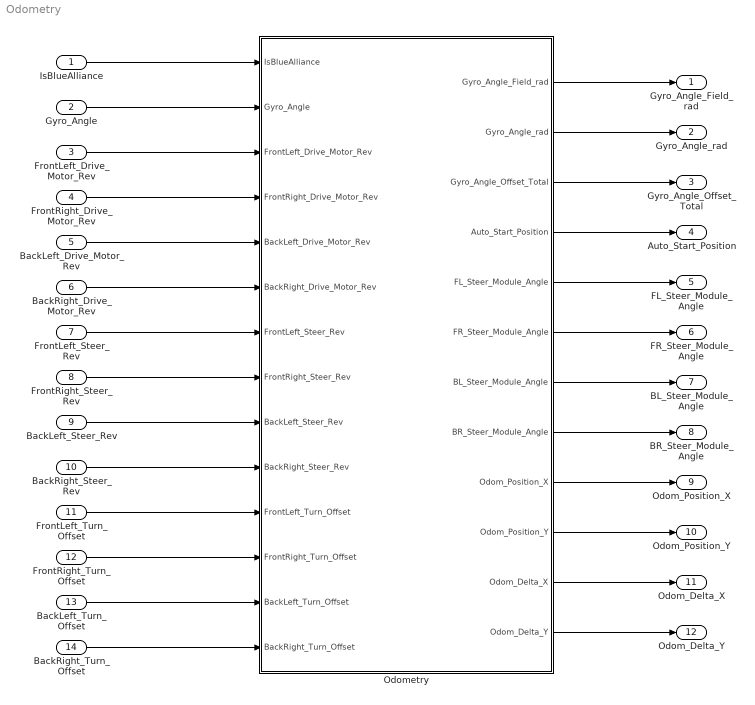
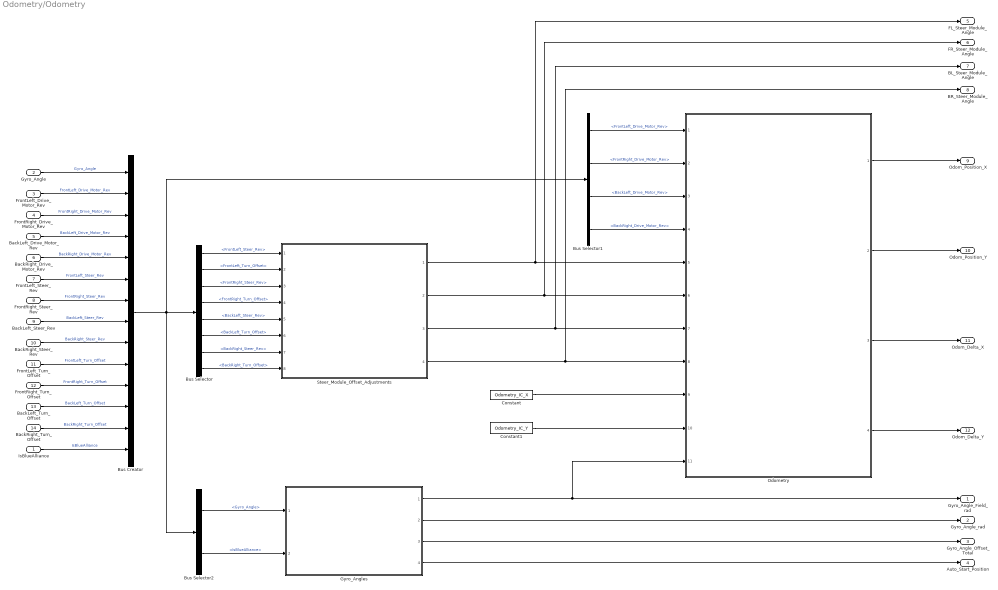
/*
 * Sponsored License - for use in support of a program or activity
 * sponsored by MathWorks.  Not for government, commercial or other
 * non-sponsored organizational use.
 *
 * File: Odometry.c
 *
 * Code generated for Simulink model 'Odometry'.
 *
 * Model version                  : 2.425
 * Simulink Coder version         : 23.2 (R2023b) 01-Aug-2023
 * C/C++ source code generated on : Sat Dec 13 20:00:44 2025
 *
 * Target selection: ert.tlc
 * Embedded hardware selection: ARM Compatible->ARM 7
 * Code generation objectives: Unspecified
 * Validation result: Not run
 */

#include "Odometry.h"
#include "rt_modd_snf.h"
#include <math.h>
#include "rtwtypes.h"
#include "Odometry_private.h"
#include "rt_nonfinite.h"

/* Exported block parameters */
real_T Auto_Starting_Position = 2.0;   /* Variable: Auto_Starting_Position
                                        * Referenced by: '<S2>/Constant2'
                                        */
real_T Gyro_Calibration_Auto_Center = 180.0;/* Variable: Gyro_Calibration_Auto_Center
                                             * Referenced by: '<S2>/Constant5'
                                             */
real_T Gyro_Calibration_Auto_Left = 210.0;/* Variable: Gyro_Calibration_Auto_Left
                                           * Referenced by: '<S2>/Constant4'
                                           */
real_T Gyro_Calibration_Auto_Right = 125.0;/* Variable: Gyro_Calibration_Auto_Right
                                            * Referenced by: '<S2>/Constant6'
                                            */
real_T Gyro_Calibration_Default = 0.0; /* Variable: Gyro_Calibration_Default
                                        * Referenced by:
                                        *   '<S2>/Constant7'
                                        *   '<S2>/Unit Delay1'
                                        */
real_T Gyro_Calibration_Reset_Flag = 0.0;/* Variable: Gyro_Calibration_Reset_Flag
                                          * Referenced by: '<S2>/Constant3'
                                          */
real_T Motor_Rev_to_Wheel_Distance = 0.049547;/* Variable: Motor_Rev_to_Wheel_Distance
                                               * Referenced by: '<S3>/Constant1'
                                               */
real_T Odometry_IC_X = 0.0;            /* Variable: Odometry_IC_X
                                        * Referenced by: '<S1>/Constant'
                                        */
real_T Odometry_IC_Y = 0.0;            /* Variable: Odometry_IC_Y
                                        * Referenced by: '<S1>/Constant1'
                                        */
real_T Odometry_Reset_IC = 0.0;        /* Variable: Odometry_Reset_IC
                                        * Referenced by: '<S3>/Constant'
                                        */
real_T Odometry_X_Y_TEAR = 0.0;        /* Variable: Odometry_X_Y_TEAR
                                        * Referenced by: '<S16>/Constant'
                                        */

/* Block signals (default storage) */
B_Odometry_T Odometry_B;

/* Block states (default storage) */
DW_Odometry_T Odometry_DW;

/* External inputs (root inport signals with default storage) */
ExtU_Odometry_T Odometry_U;

/* External outputs (root outports fed by signals with default storage) */
ExtY_Odometry_T Odometry_Y;

/* Real-time model */
static RT_MODEL_Odometry_T Odometry_M_;
RT_MODEL_Odometry_T *const Odometry_M = &Odometry_M_;

/* Model step function */
void Odometry_step(void)
{
  real_T rtb_thetay_2[8];
  real_T rtb_Product7[2];
  real_T rtb_POSEexponentialmatrixfori_0;
  real_T rtb_Rotationmatrixfromlocalto_0;
  real_T rtb_Rotationmatrixfromlocalto_1;
  real_T rtb_Rotationmatrixfromlocalto_2;
  real_T rtb_UnaryMinus2;
  real_T rtb_thetay;
  real_T rtb_thetay_b;
  real_T rtb_thetay_g;
  int32_T i;
  int32_T i_0;
  int32_T tmp;
  boolean_T rtb_Compare;

  /* Sum: '<S18>/Add1' incorporates:
   *  Constant: '<S18>/Constant3'
   *  Constant: '<S18>/Constant4'
   *  Gain: '<S4>/Revolutions to Radians'
   *  Inport: '<Root>/FrontLeft_Steer_Rev'
   *  Inport: '<Root>/FrontLeft_Turn_Offset'
   *  Math: '<S18>/Math Function'
   *  Sum: '<S18>/Add2'
   *  Sum: '<S4>/Add'
   */
  Odometry_B.FL_Steer_Module_Angle = rt_modd_snf
    (((Odometry_U.FrontLeft_Steer_Rev - Odometry_U.FrontLeft_Turn_Offset) *
      6.2831853071795862) + 3.1415926535897931, 6.2831853071795862) -
    3.1415926535897931;

  /* Product: '<S3>/Product' incorporates:
   *  Constant: '<S3>/Constant1'
   *  Inport: '<Root>/FrontLeft_Drive_Motor_Rev'
   *  Sum: '<S8>/Diff'
   *  UnitDelay: '<S8>/UD'
   *
   * Block description for '<S8>/Diff':
   *
   *  Add in CPU
   *
   * Block description for '<S8>/UD':
   *
   *  Store in Global RAM
   */
  rtb_thetay = (Odometry_U.FrontLeft_Drive_Motor_Rev - Odometry_DW.UD_DSTATE) *
    Motor_Rev_to_Wheel_Distance;

  /* Sum: '<S19>/Add1' incorporates:
   *  Constant: '<S19>/Constant3'
   *  Constant: '<S19>/Constant4'
   *  Gain: '<S4>/Revolutions to Radians1'
   *  Inport: '<Root>/FrontRight_Steer_Rev'
   *  Inport: '<Root>/FrontRight_Turn_Offset'
   *  Math: '<S19>/Math Function'
   *  Sum: '<S19>/Add2'
   *  Sum: '<S4>/Add1'
   */
  Odometry_B.FR_Steer_Module_Angle = rt_modd_snf
    (((Odometry_U.FrontRight_Steer_Rev - Odometry_U.FrontRight_Turn_Offset) *
      6.2831853071795862) + 3.1415926535897931, 6.2831853071795862) -
    3.1415926535897931;

  /* Product: '<S3>/Product1' incorporates:
   *  Constant: '<S3>/Constant1'
   *  Inport: '<Root>/FrontRight_Drive_Motor_Rev'
   *  Sum: '<S9>/Diff'
   *  UnitDelay: '<S9>/UD'
   *
   * Block description for '<S9>/Diff':
   *
   *  Add in CPU
   *
   * Block description for '<S9>/UD':
   *
   *  Store in Global RAM
   */
  rtb_thetay_g = (Odometry_U.FrontRight_Drive_Motor_Rev -
                  Odometry_DW.UD_DSTATE_o) * Motor_Rev_to_Wheel_Distance;

  /* Sum: '<S20>/Add1' incorporates:
   *  Constant: '<S20>/Constant3'
   *  Constant: '<S20>/Constant4'
   *  Gain: '<S4>/Revolutions to Radians2'
   *  Inport: '<Root>/BackLeft_Steer_Rev'
   *  Inport: '<Root>/BackLeft_Turn_Offset'
   *  Math: '<S20>/Math Function'
   *  Sum: '<S20>/Add2'
   *  Sum: '<S4>/Add2'
   */
  Odometry_B.BL_Steer_Module_Angle = rt_modd_snf(((Odometry_U.BackLeft_Steer_Rev
    - Odometry_U.BackLeft_Turn_Offset) * 6.2831853071795862) +
    3.1415926535897931, 6.2831853071795862) - 3.1415926535897931;

  /* Product: '<S3>/Product2' incorporates:
   *  Constant: '<S3>/Constant1'
   *  Inport: '<Root>/BackLeft_Drive_Motor_Rev'
   *  Sum: '<S10>/Diff'
   *  UnitDelay: '<S10>/UD'
   *
   * Block description for '<S10>/Diff':
   *
   *  Add in CPU
   *
   * Block description for '<S10>/UD':
   *
   *  Store in Global RAM
   */
  rtb_thetay_b = (Odometry_U.BackLeft_Drive_Motor_Rev - Odometry_DW.UD_DSTATE_m)
    * Motor_Rev_to_Wheel_Distance;

  /* Sum: '<S21>/Add1' incorporates:
   *  Constant: '<S21>/Constant3'
   *  Constant: '<S21>/Constant4'
   *  Gain: '<S4>/Revolutions to Radians3'
   *  Inport: '<Root>/BackRight_Steer_Rev'
   *  Inport: '<Root>/BackRight_Turn_Offset'
   *  Math: '<S21>/Math Function'
   *  Sum: '<S21>/Add2'
   *  Sum: '<S4>/Add3'
   */
  Odometry_B.BR_Steer_Module_Angle = rt_modd_snf
    (((Odometry_U.BackRight_Steer_Rev - Odometry_U.BackRight_Turn_Offset) *
      6.2831853071795862) + 3.1415926535897931, 6.2831853071795862) -
    3.1415926535897931;

  /* Product: '<S3>/Product3' incorporates:
   *  Constant: '<S3>/Constant1'
   *  Inport: '<Root>/BackRight_Drive_Motor_Rev'
   *  Sum: '<S11>/Diff'
   *  UnitDelay: '<S11>/UD'
   *
   * Block description for '<S11>/Diff':
   *
   *  Add in CPU
   *
   * Block description for '<S11>/UD':
   *
   *  Store in Global RAM
   */
  rtb_UnaryMinus2 = (Odometry_U.BackRight_Drive_Motor_Rev -
                     Odometry_DW.UD_DSTATE_om) * Motor_Rev_to_Wheel_Distance;

  /* SignalConversion generated from: '<S3>/Product7' incorporates:
   *  Fcn: '<S12>/r->x'
   *  Fcn: '<S12>/theta->y'
   *  Fcn: '<S13>/r->x'
   *  Fcn: '<S13>/theta->y'
   *  Fcn: '<S14>/r->x'
   *  Fcn: '<S14>/theta->y'
   *  Fcn: '<S15>/r->x'
   *  Fcn: '<S15>/theta->y'
   */
  rtb_thetay_2[0] = rtb_thetay * cos(Odometry_B.FL_Steer_Module_Angle);
  rtb_thetay_2[1] = rtb_thetay * sin(Odometry_B.FL_Steer_Module_Angle);
  rtb_thetay_2[2] = rtb_thetay_g * cos(Odometry_B.FR_Steer_Module_Angle);
  rtb_thetay_2[3] = rtb_thetay_g * sin(Odometry_B.FR_Steer_Module_Angle);
  rtb_thetay_2[4] = rtb_thetay_b * cos(Odometry_B.BL_Steer_Module_Angle);
  rtb_thetay_2[5] = rtb_thetay_b * sin(Odometry_B.BL_Steer_Module_Angle);
  rtb_thetay_2[6] = rtb_UnaryMinus2 * cos(Odometry_B.BR_Steer_Module_Angle);
  rtb_thetay_2[7] = rtb_UnaryMinus2 * sin(Odometry_B.BR_Steer_Module_Angle);

  /* Product: '<S3>/Product7' incorporates:
   *  Constant: '<S3>/Constant4'
   */
  for (i = 0; i < 2; i++) {
    rtb_thetay = 0.0;
    tmp = 0;
    for (i_0 = 0; i_0 < 8; i_0++) {
      rtb_thetay += rtCP_Constant4_Value[tmp + i] * rtb_thetay_2[i_0];
      tmp += 2;
    }

    rtb_Product7[i] = rtb_thetay;
  }

  /* End of Product: '<S3>/Product7' */

  /* Switch: '<S2>/Switch1' incorporates:
   *  Constant: '<S2>/Constant3'
   *  Inport: '<Root>/Gyro_Angle'
   *  RelationalOperator: '<S6>/FixPt Relational Operator'
   *  Sum: '<S2>/Sum'
   *  UnitDelay: '<S2>/Unit Delay1'
   *  UnitDelay: '<S6>/Delay Input1'
   *
   * Block description for '<S6>/Delay Input1':
   *
   *  Store in Global RAM
   */
  if (Gyro_Calibration_Reset_Flag > Odometry_DW.DelayInput1_DSTATE) {
    /* MultiPortSwitch: '<S2>/Multiport Switch' incorporates:
     *  Constant: '<S2>/Constant2'
     *  Constant: '<S2>/Constant4'
     *  Constant: '<S2>/Constant5'
     *  Constant: '<S2>/Constant6'
     *  Constant: '<S2>/Constant7'
     */
    switch ((int32_T)Auto_Starting_Position) {
     case 1:
      rtb_UnaryMinus2 = Gyro_Calibration_Auto_Left;
      break;

     case 2:
      rtb_UnaryMinus2 = Gyro_Calibration_Auto_Center;
      break;

     case 3:
      rtb_UnaryMinus2 = Gyro_Calibration_Auto_Right;
      break;

     default:
      rtb_UnaryMinus2 = Gyro_Calibration_Default;
      break;
    }

    /* End of MultiPortSwitch: '<S2>/Multiport Switch' */
    rtb_thetay = rtb_UnaryMinus2 - Odometry_U.Gyro_Angle;
  } else {
    rtb_thetay = Odometry_DW.UnitDelay1_DSTATE;
  }

  /* End of Switch: '<S2>/Switch1' */

  /* Sum: '<S2>/Subtract1' incorporates:
   *  Inport: '<Root>/Gyro_Angle'
   */
  Odometry_B.Gyro_Angle_Calibrated_deg = Odometry_U.Gyro_Angle + rtb_thetay;

  /* Gain: '<S5>/Gain1' */
  Odometry_B.Gyro_Angle_rad = 0.017453292519943295 *
    Odometry_B.Gyro_Angle_Calibrated_deg;

  /* Switch: '<S2>/Switch' incorporates:
   *  Constant: '<S2>/Constant'
   *  Constant: '<S2>/Constant1'
   *  Inport: '<Root>/IsBlueAlliance'
   */
  if (Odometry_U.IsBlueAlliance != 0.0) {
    rtb_thetay_g = 0.0;
  } else {
    rtb_thetay_g = 3.1415926535897931;
  }

  /* End of Switch: '<S2>/Switch' */

  /* Sum: '<S2>/Add' */
  Odometry_B.Gyro_Angle_Field_rad = Odometry_B.Gyro_Angle_rad + rtb_thetay_g;

  /* Trigonometry: '<S3>/Trigonometric Function1' */
  rtb_thetay_b = sin(Odometry_B.Gyro_Angle_Field_rad);

  /* SignalConversion generated from: '<S3>/Rotation matrix from local to global' incorporates:
   *  Trigonometry: '<S3>/Trigonometric Function'
   */
  rtb_Rotationmatrixfromlocalto_0 = cos(Odometry_B.Gyro_Angle_Field_rad);
  rtb_Rotationmatrixfromlocalto_1 = rtb_thetay_b;

  /* SignalConversion generated from: '<S3>/Rotation matrix from local to global' incorporates:
   *  UnaryMinus: '<S3>/Unary Minus'
   */
  rtb_Rotationmatrixfromlocalto_2 = -rtb_thetay_b;

  /* Sum: '<S7>/Diff' incorporates:
   *  UnitDelay: '<S7>/UD'
   *
   * Block description for '<S7>/Diff':
   *
   *  Add in CPU
   *
   * Block description for '<S7>/UD':
   *
   *  Store in Global RAM
   */
  rtb_UnaryMinus2 = Odometry_B.Gyro_Angle_Field_rad - Odometry_DW.UD_DSTATE_h;

  /* Sum: '<S3>/Subtract2' incorporates:
   *  Constant: '<S3>/Constant3'
   *  Gain: '<S3>/Gain7'
   *  Math: '<S3>/Square'
   */
  rtb_thetay_b = 1.0 - ((rtb_UnaryMinus2 * rtb_UnaryMinus2) *
                        0.16666666666666666);

  /* Gain: '<S3>/Gain6' */
  rtb_UnaryMinus2 *= 0.5;

  /* Product: '<S3>/Product6' incorporates:
   *  SignalConversion generated from: '<S3>/POSE exponential matrix for improved accuracy while rotating'
   *  UnaryMinus: '<S3>/Unary Minus2'
   */
  rtb_POSEexponentialmatrixfori_0 = (rtb_thetay_b * rtb_Product7[0]) +
    ((-rtb_UnaryMinus2) * rtb_Product7[1]);
  rtb_thetay_b = (rtb_UnaryMinus2 * rtb_Product7[0]) + (rtb_thetay_b *
    rtb_Product7[1]);

  /* Product: '<S3>/Product6' incorporates:
   *  Concatenate: '<S3>/Rotation matrix from local to global'
   */
  Odometry_B.Product6[0] = (rtb_Rotationmatrixfromlocalto_0 *
    rtb_POSEexponentialmatrixfori_0) + (rtb_Rotationmatrixfromlocalto_2 *
    rtb_thetay_b);
  Odometry_B.Product6[1] = (rtb_Rotationmatrixfromlocalto_1 *
    rtb_POSEexponentialmatrixfori_0) + (rtb_Rotationmatrixfromlocalto_0 *
    rtb_thetay_b);

  /* Outport: '<Root>/Odom_Delta_X' */
  Odometry_Y.Odom_Delta_X = Odometry_B.Product6[0];

  /* Outport: '<Root>/Odom_Delta_Y' */
  Odometry_Y.Odom_Delta_Y = Odometry_B.Product6[1];

  /* Outport: '<Root>/Gyro_Angle_Field_rad' */
  Odometry_Y.Gyro_Angle_Field_rad = Odometry_B.Gyro_Angle_Field_rad;

  /* Outport: '<Root>/Gyro_Angle_Offset_Total' incorporates:
   *  Gain: '<S2>/Gain'
   *  Sum: '<S2>/Add1'
   */
  Odometry_Y.Gyro_Angle_Offset_Total = (rtb_thetay_g + rtb_thetay) *
    57.295779513082323;

  /* Outport: '<Root>/Gyro_Angle_rad' */
  Odometry_Y.Gyro_Angle_rad = Odometry_B.Gyro_Angle_rad;

  /* Outport: '<Root>/Auto_Start_Position' incorporates:
   *  Constant: '<S2>/Constant2'
   */
  Odometry_Y.Auto_Start_Position = Auto_Starting_Position;

  /* Outport: '<Root>/BR_Steer_Module_Angle' */
  Odometry_Y.BR_Steer_Module_Angle = Odometry_B.BR_Steer_Module_Angle;

  /* Outport: '<Root>/BL_Steer_Module_Angle' */
  Odometry_Y.BL_Steer_Module_Angle = Odometry_B.BL_Steer_Module_Angle;

  /* Outport: '<Root>/FR_Steer_Module_Angle' */
  Odometry_Y.FR_Steer_Module_Angle = Odometry_B.FR_Steer_Module_Angle;

  /* Outport: '<Root>/FL_Steer_Module_Angle' */
  Odometry_Y.FL_Steer_Module_Angle = Odometry_B.FL_Steer_Module_Angle;

  /* RelationalOperator: '<S17>/Compare' incorporates:
   *  Constant: '<S16>/Constant'
   *  Constant: '<S17>/Constant'
   */
  rtb_Compare = (Odometry_X_Y_TEAR != 0.0);

  /* DiscreteIntegrator: '<S3>/Accumulator2' incorporates:
   *  Constant: '<S1>/Constant'
   *  Constant: '<S3>/Constant'
   */
  if ((Odometry_Reset_IC > 0.0) && (Odometry_DW.Accumulator2_PrevResetState <= 0))
  {
    Odometry_DW.Accumulator2_DSTATE = Odometry_IC_X;
  }

  /* DiscreteIntegrator: '<S3>/Accumulator2' */
  Odometry_B.Odom_Position_X = Odometry_DW.Accumulator2_DSTATE;

  /* Gain: '<S16>/meters to feet' */
  Odometry_B.Odometry_X_global_est_ft = 3.28084 * Odometry_B.Odom_Position_X;

  /* Switch: '<S16>/Switch' incorporates:
   *  UnitDelay: '<S16>/Unit Delay'
   */
  if (rtb_Compare) {
    rtb_UnaryMinus2 = Odometry_B.Odometry_X_global_est_ft;
  } else {
    rtb_UnaryMinus2 = Odometry_DW.UnitDelay_DSTATE;
  }

  /* End of Switch: '<S16>/Switch' */

  /* Sum: '<S16>/Subtract' */
  Odometry_B.Odometry_X_global_TEAR_ft = Odometry_B.Odometry_X_global_est_ft -
    rtb_UnaryMinus2;

  /* Outport: '<Root>/Odom_Position_X' */
  Odometry_Y.Odom_Position_X = Odometry_B.Odom_Position_X;

  /* DiscreteIntegrator: '<S3>/Accumulator' incorporates:
   *  Constant: '<S1>/Constant1'
   *  Constant: '<S3>/Constant'
   */
  if ((Odometry_Reset_IC > 0.0) && (Odometry_DW.Accumulator_PrevResetState <= 0))
  {
    Odometry_DW.Accumulator_DSTATE = Odometry_IC_Y;
  }

  /* DiscreteIntegrator: '<S3>/Accumulator' */
  Odometry_B.Odom_Position_Y = Odometry_DW.Accumulator_DSTATE;

  /* Outport: '<Root>/Odom_Position_Y' */
  Odometry_Y.Odom_Position_Y = Odometry_B.Odom_Position_Y;

  /* Gain: '<S16>/meters to feet1' */
  Odometry_B.Odometry_Y_global_est_ft = 3.28084 * Odometry_B.Odom_Position_Y;

  /* Switch: '<S16>/Switch1' incorporates:
   *  UnitDelay: '<S16>/Unit Delay1'
   */
  if (rtb_Compare) {
    rtb_thetay_g = Odometry_B.Odometry_Y_global_est_ft;
  } else {
    rtb_thetay_g = Odometry_DW.UnitDelay1_DSTATE_h;
  }

  /* End of Switch: '<S16>/Switch1' */

  /* Sum: '<S16>/Subtract1' */
  Odometry_B.Odometry_Y_global_TEAR_ft = Odometry_B.Odometry_Y_global_est_ft -
    rtb_thetay_g;

  /* Update for UnitDelay: '<S8>/UD' incorporates:
   *  Inport: '<Root>/FrontLeft_Drive_Motor_Rev'
   *
   * Block description for '<S8>/UD':
   *
   *  Store in Global RAM
   */
  Odometry_DW.UD_DSTATE = Odometry_U.FrontLeft_Drive_Motor_Rev;

  /* Update for UnitDelay: '<S9>/UD' incorporates:
   *  Inport: '<Root>/FrontRight_Drive_Motor_Rev'
   *
   * Block description for '<S9>/UD':
   *
   *  Store in Global RAM
   */
  Odometry_DW.UD_DSTATE_o = Odometry_U.FrontRight_Drive_Motor_Rev;

  /* Update for UnitDelay: '<S10>/UD' incorporates:
   *  Inport: '<Root>/BackLeft_Drive_Motor_Rev'
   *
   * Block description for '<S10>/UD':
   *
   *  Store in Global RAM
   */
  Odometry_DW.UD_DSTATE_m = Odometry_U.BackLeft_Drive_Motor_Rev;

  /* Update for UnitDelay: '<S11>/UD' incorporates:
   *  Inport: '<Root>/BackRight_Drive_Motor_Rev'
   *
   * Block description for '<S11>/UD':
   *
   *  Store in Global RAM
   */
  Odometry_DW.UD_DSTATE_om = Odometry_U.BackRight_Drive_Motor_Rev;

  /* Update for UnitDelay: '<S6>/Delay Input1' incorporates:
   *  Constant: '<S2>/Constant3'
   *
   * Block description for '<S6>/Delay Input1':
   *
   *  Store in Global RAM
   */
  Odometry_DW.DelayInput1_DSTATE = Gyro_Calibration_Reset_Flag;

  /* Update for UnitDelay: '<S2>/Unit Delay1' */
  Odometry_DW.UnitDelay1_DSTATE = rtb_thetay;

  /* Update for UnitDelay: '<S7>/UD'
   *
   * Block description for '<S7>/UD':
   *
   *  Store in Global RAM
   */
  Odometry_DW.UD_DSTATE_h = Odometry_B.Gyro_Angle_Field_rad;

  /* Update for DiscreteIntegrator: '<S3>/Accumulator2' incorporates:
   *  Constant: '<S3>/Constant'
   *  DiscreteIntegrator: '<S3>/Accumulator'
   */
  Odometry_DW.Accumulator2_DSTATE += Odometry_B.Product6[0];
  if (Odometry_Reset_IC > 0.0) {
    Odometry_DW.Accumulator2_PrevResetState = 1;
    Odometry_DW.Accumulator_PrevResetState = 1;
  } else {
    if (Odometry_Reset_IC < 0.0) {
      Odometry_DW.Accumulator2_PrevResetState = -1;
    } else if (Odometry_Reset_IC == 0.0) {
      Odometry_DW.Accumulator2_PrevResetState = 0;
    } else {
      Odometry_DW.Accumulator2_PrevResetState = 2;
    }

    if (Odometry_Reset_IC < 0.0) {
      Odometry_DW.Accumulator_PrevResetState = -1;
    } else if (Odometry_Reset_IC == 0.0) {
      Odometry_DW.Accumulator_PrevResetState = 0;
    } else {
      Odometry_DW.Accumulator_PrevResetState = 2;
    }
  }

  /* End of Update for DiscreteIntegrator: '<S3>/Accumulator2' */

  /* Update for UnitDelay: '<S16>/Unit Delay' */
  Odometry_DW.UnitDelay_DSTATE = rtb_UnaryMinus2;

  /* Update for DiscreteIntegrator: '<S3>/Accumulator' */
  Odometry_DW.Accumulator_DSTATE += Odometry_B.Product6[1];

  /* Update for UnitDelay: '<S16>/Unit Delay1' */
  Odometry_DW.UnitDelay1_DSTATE_h = rtb_thetay_g;
}
